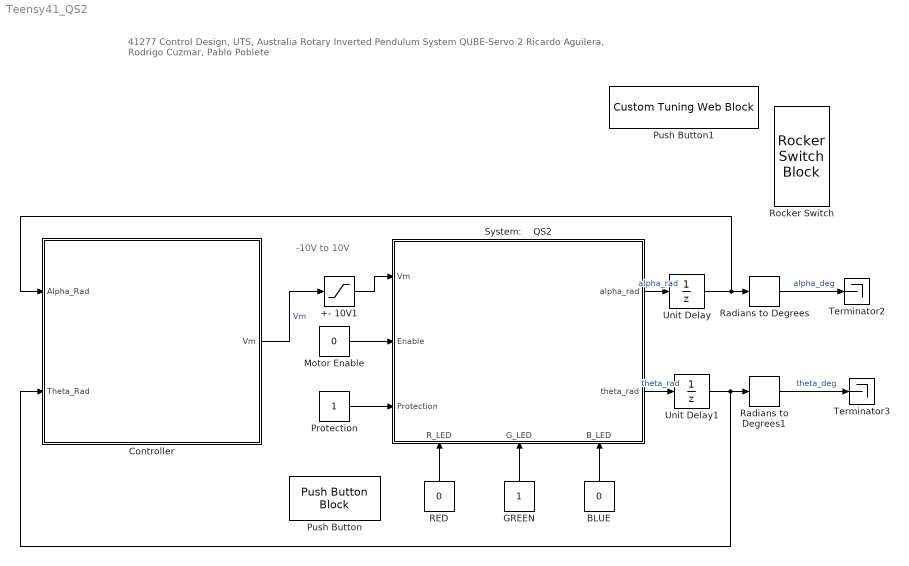
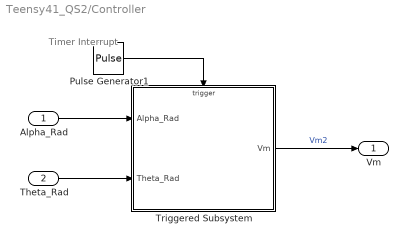
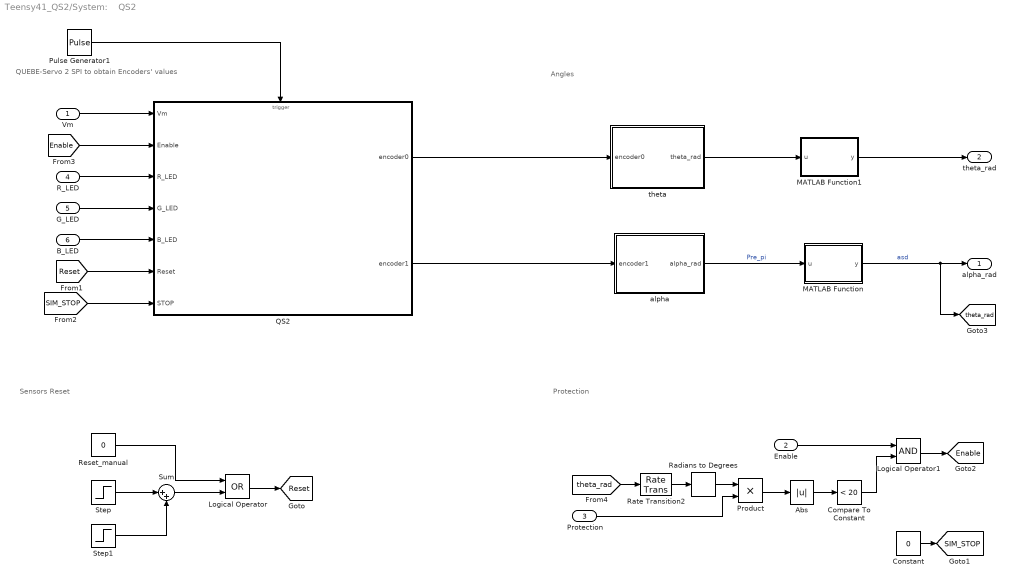
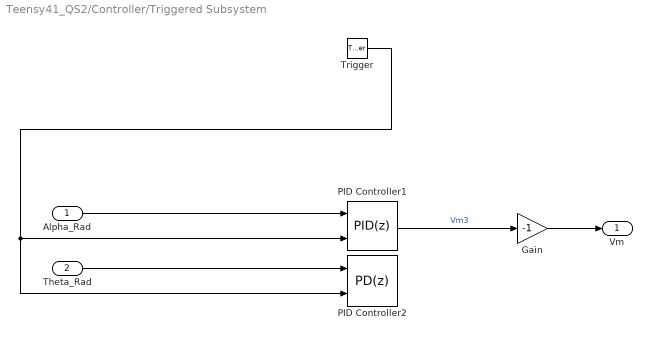
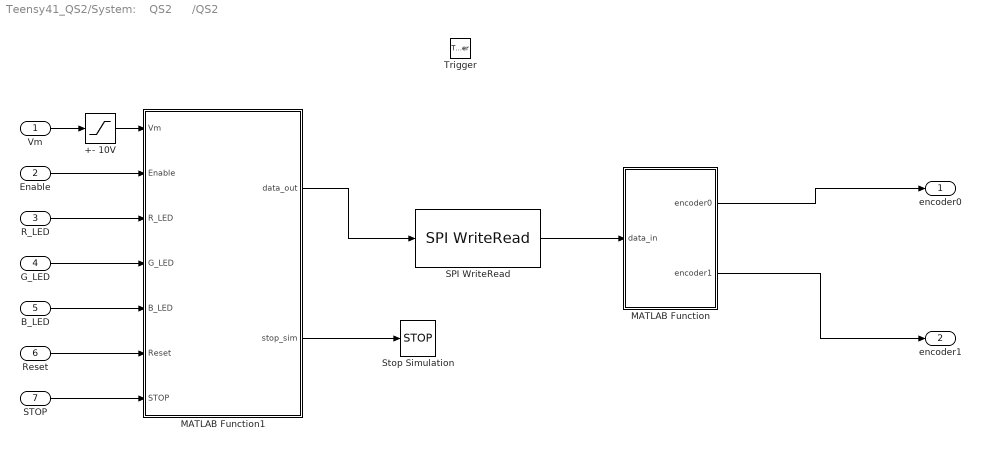
== matlab function Teensy41_QS2/System:    QS2      /QS2/MATLAB Function1 ==
function [data_out,stop_sim]  = QS2_SPI_write(Vm,Enable,R_LED,G_LED,B_LED,Reset, STOP)

persistent count_startup count_stop stop
if isempty(count_startup)
    count_startup = 1; 
    count_stop = 1;
    stop = false;
end

if (STOP > 0)
    stop = true;
end

startup = true;
if (count_startup>=5)
    startup = false;
    count_startup = 10;
end

%% SPI data to be sent
SPI_data_out = uint8(zeros(17,1));
SPI_data_out(1) = 1;
writeMask = 31;
SPI_data_out(3) = writeMask;

%% Motor Voltage
Vm_int = int16(Vm *(625.0 / 15.0));
Vm_int = bitset(Vm_int,16);
motor = typecast(Vm_int,'uint16');
motorMSB = bitshift(motor,-8);
motorLSB = bitand(motor,255);

SPI_data_out(16) = motorMSB;
SPI_data_out(17) = motorLSB;


%% Enable
if (Enable~=1)
    writeMask = 31;
    SPI_data_out(3) = writeMask;
    SPI_data_out(16) = 0;
    SPI_data_out(17) = 0;
    R_LED = 1;
    G_LED = 0;
    B_LED = 0;
end

%% Reset Encoders
if (Reset==1 || startup)
    writeMask = 127;
    SPI_data_out(3) = writeMask;
    SPI_data_out(16) = 0;
    SPI_data_out(17) = 0;
    R_LED = 1;
    G_LED = 1;
    B_LED = 1;
end

stop_sim = false;
if (stop || count_stop>1)
    count_stop = count_stop + 1;
    writeMask = 31;
    SPI_data_out(3) = writeMask;
    SPI_data_out(16) = 0;
    SPI_data_out(17) = 0;
    R_LED = 1;
    G_LED = 0;
    B_LED = 0;
end

if (count_stop> 1)
    stop_sim = true;
end

count_startup = count_startup + 1;


%% LEDs
R_LED = 999*min(1, max(0, R_LED));
G_LED = 999*min(1, max(0, G_LED));
B_LED = 999*min(1, max(0, B_LED));

LEDRedMSB   = bitshift(R_LED,-8);
LEDRedLSB   = bitand(R_LED, 255);
LEDGreenMSB = bitshift(G_LED,-8);
LEDGreenLSB = bitand(G_LED, 255);
LEDBlueMSB  = bitshift(B_LED,-8);
LEDBlueLSB  = bitand(B_LED, 255);


SPI_data_out(4) = LEDRedMSB;
SPI_data_out(5) = LEDRedLSB;
SPI_data_out(6) = LEDGreenMSB;
SPI_data_out(7) = LEDGreenLSB;
SPI_data_out(8) = LEDBlueMSB;
SPI_data_out(9) = LEDBlueLSB;

data_out = SPI_data_out;

== matlab function Teensy41_QS2/System:    QS2      /alpha ==
function alpha_rad = enc2alpha(encoder1)
%calibrate this angle sensor


% encoder provides 2048 counts per rotation
% when encoder1 = 0 --> alpha = -pi

% Convert E1 counts to pendulum angle (radians)
alpha_rad = (encoder1/(2048/(2*pi)))-pi;
% alpha_rad = alpha_rad - pi;

== matlab function Teensy41_QS2/System:    QS2      /MATLAB Function ==
function y = fcn(u)

y = u - pi;
if u > pi
    y = u-2*pi;
else
    y = u;
end

== matlab function Teensy41_QS2/System:    QS2      /theta ==
function theta_rad = enc2theta(encoder0)
%calibrate this angle sensor

% encoder provides 2048 counts per rotation
% when encoder0 = 0 --> alpha = 0
% negative rotation

% Convert E0 counts to rotation angle (radians)
theta_rad = -encoder0/(2048/(2*pi));

== matlab function Teensy41_QS2/System:    QS2      /MATLAB Function1 ==
function y = fcn(u)

if abs(u) > 2*pi
    u = 0;
end

y = u;

== matlab function Teensy41_QS2/System:    QS2      /QS2/MATLAB Function ==
function [encoder0, encoder1] =  QS2_SPI_read(data_in)

%% Encoder 0

%encoder0 data
encoder0Byte = [data_in(5), data_in(4), data_in(3)];

% Build 24-bit value
enc24 = bitor( ...
          bitor(bitshift(uint32(encoder0Byte(3)),16), ...
                bitshift(uint32(encoder0Byte(2)),8)), ...
          uint32(encoder0Byte(1)));

% Sign-extend 24-bit to 32-bit:
% left shift 8, then arithmetic right shift 8 (on int32) 
enc0 = bitshift(bitshift(int32(enc24), 8), -8);
encoder0 = double(enc0);

%% Encoder 1

%encoder1 data
encoder1Byte = [data_in(8), data_in(7), data_in(6)];

% Build 24-bit unsigned value
enc24 = bitor( ...
          bitor(bitshift(uint32(encoder1Byte(3)),16), ...
                bitshift(uint32(encoder1Byte(2)),8)), ...
          uint32(encoder1Byte(1)));

% Sign-extend from 24-bit to int32
enc1 = bitshift(bitshift(int32(enc24), 8), -8);

% Wrap counts to [0, 2047]
enc1 = mod(enc1, 2047);
if enc1 < 0
    enc1 = enc1 + 2047;
end
encoder1 = double(enc1);

/*
 * Academic License - for use in teaching, academic research, and meeting
 * course requirements at degree granting institutions only.  Not for
 * government, commercial, or other organizational use.
 *
 * File: Teensy41_QS2.c
 *
 * Code generated for Simulink model 'Teensy41_QS2'.
 *
 * Model version                  : 1.108
 * Simulink Coder version         : 24.2 (R2024b) 21-Jun-2024
 * C/C++ source code generated on : Tue Oct 28 19:15:10 2025
 *
 * Target selection: ert.tlc
 * Embedded hardware selection: ARM Compatible->ARM Cortex
 * Code generation objectives: Unspecified
 * Validation result: Not run
 */

#include "Teensy41_QS2.h"
#include <math.h>
#include "Teensy41_QS2_private.h"
#include <string.h>
#include "rt_nonfinite.h"
#include "rtwtypes.h"
#include "multiword_types.h"
#include <stddef.h>
#include "zero_crossing_types.h"

/* Block signals (default storage) */
B_Teensy41_QS2_T Teensy41_QS2_B;

/* Block states (default storage) */
DW_Teensy41_QS2_T Teensy41_QS2_DW;

/* Previous zero-crossings (trigger) states */
PrevZCX_Teensy41_QS2_T Teensy41_QS2_PrevZCX;

/* Real-time model */
static RT_MODEL_Teensy41_QS2_T Teensy41_QS2_M_;
RT_MODEL_Teensy41_QS2_T *const Teensy41_QS2_M = &Teensy41_QS2_M_;
static void rate_monotonic_scheduler(void);
int32_T MultiWord2sLong(const uint32_T u[])
{
  return (int32_T)u[0];
}

void Double2MultiWord(real_T u1, uint32_T y[], int32_T n)
{
  real_T yd;
  real_T yn;
  int32_T currExp;
  int32_T i;
  int32_T msl;
  int32_T prevExp;
  uint32_T cb;
  uint32_T u1i;
  boolean_T isNegative;
  isNegative = (u1 < 0.0);
  yn = frexp(u1, &currExp);
  msl = currExp <= 0 ? -1 : (currExp - 1) / 32;
  cb = 1U;
  for (i = msl + 1; i < n; i++) {
    y[i] = 0U;
  }

  yn = isNegative ? -yn : yn;
  prevExp = msl << 5;
  for (i = msl; i >= 0; i--) {
    yn = ldexp(yn, currExp - prevExp);
    yd = floor(yn);
    yn -= yd;
    if (i < n) {
      y[i] = (uint32_T)yd;
    }

    currExp = prevExp;
    prevExp -= 32;
  }

  if (isNegative) {
    for (i = 0; i < n; i++) {
      u1i = ~y[i];
      cb += u1i;
      y[i] = cb;
      cb = (uint32_T)(cb < u1i);
    }
  }
}

int32_T div_nde_s32_floor(int32_T numerator, int32_T denominator)
{
  return (((numerator < 0) != (denominator < 0)) && (numerator % denominator !=
           0) ? -1 : 0) + numerator / denominator;
}

/*
 * Set which subrates need to run this base step (base rate always runs).
 * This function must be called prior to calling the model step function
 * in order to remember which rates need to run this base step.  The
 * buffering of events allows for overlapping preemption.
 */
void Teensy41_QS2_SetEventsForThisBaseStep(boolean_T *eventFlags)
{
  /* Task runs when its counter is zero, computed via rtmStepTask macro */
  eventFlags[1] = ((boolean_T)rtmStepTask(Teensy41_QS2_M, 1));
}

/*
 *         This function updates active task flag for each subrate
 *         and rate transition flags for tasks that exchange data.
 *         The function assumes rate-monotonic multitasking scheduler.
 *         The function must be called at model base rate so that
 *         the generated code self-manages all its subrates and rate
 *         transition flags.
 */
static void rate_monotonic_scheduler(void)
{
  /* To ensure a deterministic data transfer between two rates,
   * data is transferred at the priority of a fast task and the frequency
   * of the slow task.  The following flags indicate when the data transfer
   * happens.  That is, a rate interaction flag is set true when both rates
   * will run, and false otherwise.
   */

  /* tid 0 shares data with slower tid rate: 1 */
  Teensy41_QS2_M->Timing.RateInteraction.TID0_1 =
    (Teensy41_QS2_M->Timing.TaskCounters.TID[1] == 0);

  /* Compute which subrates run during the next base time step.  Subrates
   * are an integer multiple of the base rate counter.  Therefore, the subtask
   * counter is reset when it reaches its limit (zero means run).
   */
  (Teensy41_QS2_M->Timing.TaskCounters.TID[1])++;
  if ((Teensy41_QS2_M->Timing.TaskCounters.TID[1]) > 1) {/* Sample time: [0.001s, 0.0s] */
    Teensy41_QS2_M->Timing.TaskCounters.TID[1] = 0;
  }
}

real_T rt_roundd_snf(real_T u)
{
  real_T y;
  if (fabs(u) < 4.503599627370496E+15) {
    if (u >= 0.5) {
      y = floor(u + 0.5);
    } else if (u > -0.5) {
      y = u * 0.0;
    } else {
      y = ceil(u - 0.5);
    }
  } else {
    y = u;
  }

  return y;
}

/* Model step function for TID0 */
void Teensy41_QS2_step0(void)          /* Sample time: [0.0005s, 0.0s] */
{
  uint64m_T tmp;
  uint64m_T tmp_0;
  uint64m_T tmp_1;
  real_T tmp_3;
  real_T y;
  int32_T i;
  uint32_T TriggeredSubsystem_ELAPS_T;
  int16_T x;
  uint16_T motor;
  int8_T rtb_Switch1;
  int8_T tmp_2;
  uint8_T tmp_4;
  boolean_T rtb_RelationalOperator;
  boolean_T startup;
  ZCEventType zcEvent;

  {                                    /* Sample time: [0.0005s, 0.0s] */
    rate_monotonic_scheduler();
  }

  /* Reset subsysRan breadcrumbs */
  srClearBC(Teensy41_QS2_DW.TriggeredSubsystem_SubsysRanBC);

  /* Reset subsysRan breadcrumbs */
  srClearBC(Teensy41_QS2_DW.QS2_SubsysRanBC);

  /* Gain: '<S3>/Gain' incorporates:
   *  UnitDelay: '<Root>/Unit Delay1'
   */
  Teensy41_QS2_B.Gain = Teensy41_QS2_P.Gain_Gain_m *
    Teensy41_QS2_DW.UnitDelay1_DSTATE;

  /* Gain: '<S2>/Gain' incorporates:
   *  UnitDelay: '<Root>/Unit Delay'
   */
  Teensy41_QS2_B.Gain_b = Teensy41_QS2_P.Gain_Gain_k *
    Teensy41_QS2_DW.UnitDelay_DSTATE;

  /* Outputs for Atomic SubSystem: '<Root>/Controller' */
  /* DiscretePulseGenerator: '<S1>/Pulse Generator1' */
  Teensy41_QS2_B.PulseGenerator1_a = (Teensy41_QS2_DW.clockTickCounter_p <
    Teensy41_QS2_P.PulseGenerator1_Duty) && (Teensy41_QS2_DW.clockTickCounter_p >=
    0) ? Teensy41_QS2_P.PulseGenerator1_Amp : 0.0;
  if (Teensy41_QS2_DW.clockTickCounter_p >=
      Teensy41_QS2_P.PulseGenerator1_Period - 1.0) {
    Teensy41_QS2_DW.clockTickCounter_p = 0;
  } else {
    Teensy41_QS2_DW.clockTickCounter_p++;
  }

  /* End of DiscretePulseGenerator: '<S1>/Pulse Generator1' */

  /* Outputs for Triggered SubSystem: '<S1>/Triggered Subsystem' incorporates:
   *  TriggerPort: '<S5>/Trigger'
   */
  zcEvent = rt_ZCFcn(RISING_ZERO_CROSSING,
                     &Teensy41_QS2_PrevZCX.TriggeredSubsystem_Trig_ZCE,
                     (Teensy41_QS2_B.PulseGenerator1_a));
  if (zcEvent != NO_ZCEVENT) {
    if (Teensy41_QS2_DW.TriggeredSubsystem_RESET_ELAPS_) {
      TriggeredSubsystem_ELAPS_T = 0U;
    } else {
      TriggeredSubsystem_ELAPS_T = Teensy41_QS2_M->Timing.clockTick0 -
        Teensy41_QS2_DW.TriggeredSubsystem_PREV_T;
    }

    Teensy41_QS2_DW.TriggeredSubsystem_PREV_T =
      Teensy41_QS2_M->Timing.clockTick0;
    Teensy41_QS2_DW.TriggeredSubsystem_RESET_ELAPS_ = false;

    /* DiscreteIntegrator: '<S44>/Integrator' incorporates:
     *  Constant: '<S5>/Constant4'
     */
    if (Teensy41_QS2_DW.Integrator_SYSTEM_ENABLE == 0) {
      if ((Teensy41_QS2_P.Constant4_Value > 0.0) &&
          (Teensy41_QS2_DW.Integrator_PrevResetState <= 0)) {
        Teensy41_QS2_DW.Integrator_DSTATE =
          Teensy41_QS2_P.PIDController1_InitialConditi_m;
      } else {
        /* DiscreteIntegrator: '<S44>/Integrator' */
        Teensy41_QS2_DW.Integrator_DSTATE += Teensy41_QS2_P.Integrator_gainval *
          (real_T)TriggeredSubsystem_ELAPS_T * Teensy41_QS2_DW.Integrator_PREV_U;
      }
    }

    /* End of DiscreteIntegrator: '<S44>/Integrator' */

    /* DiscreteIntegrator: '<S39>/Filter' incorporates:
     *  Constant: '<S5>/Constant4'
     */
    if (Teensy41_QS2_DW.Filter_SYSTEM_ENABLE == 0) {
      if ((Teensy41_QS2_P.Constant4_Value > 0.0) &&
          (Teensy41_QS2_DW.Filter_PrevResetState <= 0)) {
        Teensy41_QS2_DW.Filter_DSTATE =
          Teensy41_QS2_P.PIDController1_InitialCondition;
      } else {
        /* DiscreteIntegrator: '<S39>/Filter' */
        Teensy41_QS2_DW.Filter_DSTATE += Teensy41_QS2_P.Filter_gainval * (real_T)
          TriggeredSubsystem_ELAPS_T * Teensy41_QS2_DW.Filter_PREV_U;
      }
    }

    /* End of DiscreteIntegrator: '<S39>/Filter' */

    /* Product: '<S47>/NProd Out' incorporates:
     *  Constant: '<S5>/Constant2'
     *  Constant: '<S5>/Constant3'
     *  Math: '<S5>/Math Function'
     *  Product: '<S37>/DProd Out'
     *  Sum: '<S39>/SumD'
     *  UnitDelay: '<Root>/Unit Delay'
     *
     * About '<S5>/Math Function':
     *  Operator: reciprocal
     */
    Teensy41_QS2_DW.Filter_PREV_U = (Teensy41_QS2_DW.UnitDelay_DSTATE *
      Teensy41_QS2_P.Constant2_Value - Teensy41_QS2_DW.Filter_DSTATE) * (1.0 /
      Teensy41_QS2_P.Constant3_Value);

    /* Step: '<S4>/Step1' incorporates:
     *  Constant: '<S5>/Constant'
     *  Product: '<S49>/PProd Out'
     *  Sum: '<S53>/Sum'
     *  UnitDelay: '<Root>/Unit Delay'
     */
    Teensy41_QS2_B.Saturation = (Teensy41_QS2_DW.UnitDelay_DSTATE *
      Teensy41_QS2_P.Constant_Value + Teensy41_QS2_DW.Integrator_DSTATE) +
      Teensy41_QS2_DW.Filter_PREV_U;

    /* DeadZone: '<S36>/DeadZone' */
    if (Teensy41_QS2_B.Saturation >
        Teensy41_QS2_P.PIDController1_UpperSaturationL) {
      /* Step: '<S4>/Step' */
      Teensy41_QS2_DW.Integrator_PREV_U = Teensy41_QS2_B.Saturation -
        Teensy41_QS2_P.PIDController1_UpperSaturationL;
    } else if (Teensy41_QS2_B.Saturation >=
               Teensy41_QS2_P.PIDController1_LowerSaturationL) {
      /* Step: '<S4>/Step' */
      Teensy41_QS2_DW.Integrator_PREV_U = 0.0;
    } else {
      /* Step: '<S4>/Step' */
      Teensy41_QS2_DW.Integrator_PREV_U = Teensy41_QS2_B.Saturation -
        Teensy41_QS2_P.PIDController1_LowerSaturationL;
    }

    /* End of DeadZone: '<S36>/DeadZone' */

    /* RelationalOperator: '<S34>/Relational Operator' incorporates:
     *  Constant: '<S34>/Clamping_zero'
     */
    rtb_RelationalOperator = (Teensy41_QS2_P.Clamping_zero_Value !=
      Teensy41_QS2_DW.Integrator_PREV_U);

    /* Switch: '<S34>/Switch1' incorporates:
     *  Constant: '<S34>/Clamping_zero'
     *  Constant: '<S34>/Constant'
     *  Constant: '<S34>/Constant2'
     *  RelationalOperator: '<S34>/fix for DT propagation issue'
     */
    if (Teensy41_QS2_DW.Integrator_PREV_U > Teensy41_QS2_P.Clamping_zero_Value)
    {
      rtb_Switch1 = Teensy41_QS2_P.Constant_Value_j;
    } else {
      rtb_Switch1 = Teensy41_QS2_P.Constant2_Value_o;
    }

    /* End of Switch: '<S34>/Switch1' */

    /* Step: '<S4>/Step' incorporates:
     *  Constant: '<S5>/Constant1'
     *  Product: '<S41>/IProd Out'
     *  UnitDelay: '<Root>/Unit Delay'
     */
    Teensy41_QS2_DW.Integrator_PREV_U = Teensy41_QS2_DW.UnitDelay_DSTATE *
      Teensy41_QS2_P.Constant1_Value_i;

    /* Saturate: '<S51>/Saturation' */
    if (Teensy41_QS2_B.Saturation >
        Teensy41_QS2_P.PIDController1_UpperSaturationL) {
      /* Step: '<S4>/Step1' incorporates:
       *  Saturate: '<S51>/Saturation'
       */
      Teensy41_QS2_B.Saturation = Teensy41_QS2_P.PIDController1_UpperSaturationL;
    } else if (Teensy41_QS2_B.Saturation <
               Teensy41_QS2_P.PIDController1_LowerSaturationL) {
      /* Step: '<S4>/Step1' incorporates:
       *  Saturate: '<S51>/Saturation'
       */
      Teensy41_QS2_B.Saturation = Teensy41_QS2_P.PIDController1_LowerSaturationL;
    }

    /* End of Saturate: '<S51>/Saturation' */
    /* Gain: '<S5>/Gain' */
    Teensy41_QS2_B.Gain_b5 = Teensy41_QS2_P.Gain_Gain *
      Teensy41_QS2_B.Saturation;

    /* Update for DiscreteIntegrator: '<S44>/Integrator' incorporates:
     *  Constant: '<S5>/Constant4'
     */
    Teensy41_QS2_DW.Integrator_SYSTEM_ENABLE = 0U;
    if (Teensy41_QS2_P.Constant4_Value > 0.0) {
      Teensy41_QS2_DW.Integrator_PrevResetState = 1;
    } else if (Teensy41_QS2_P.Constant4_Value < 0.0) {
      Teensy41_QS2_DW.Integrator_PrevResetState = -1;
    } else if (Teensy41_QS2_P.Constant4_Value == 0.0) {
      Teensy41_QS2_DW.Integrator_PrevResetState = 0;
    } else {
      Teensy41_QS2_DW.Integrator_PrevResetState = 2;
    }

    /* Switch: '<S34>/Switch2' incorporates:
     *  Constant: '<S34>/Clamping_zero'
     *  Constant: '<S34>/Constant3'
     *  Constant: '<S34>/Constant4'
     *  RelationalOperator: '<S34>/fix for DT propagation issue1'
     */
    if (Teensy41_QS2_DW.Integrator_PREV_U > Teensy41_QS2_P.Clamping_zero_Value)
    {
      tmp_2 = Teensy41_QS2_P.Constant3_Value_m;
    } else {
      tmp_2 = Teensy41_QS2_P.Constant4_Value_e;
    }

    /* Switch: '<S34>/Switch' incorporates:
     *  Logic: '<S34>/AND3'
     *  RelationalOperator: '<S34>/Equal1'
     *  Switch: '<S34>/Switch2'
     */
    if (rtb_RelationalOperator && (rtb_Switch1 == tmp_2)) {
      /* Step: '<S4>/Step' incorporates:
       *  Constant: '<S34>/Constant1'
       *  DiscreteIntegrator: '<S44>/Integrator'
       */
      Teensy41_QS2_DW.Integrator_PREV_U = Teensy41_QS2_P.Constant1_Value;
    }

    /* End of Switch: '<S34>/Switch' */

    /* Update for DiscreteIntegrator: '<S39>/Filter' incorporates:
     *  Constant: '<S5>/Constant4'
     */
    Teensy41_QS2_DW.Filter_SYSTEM_ENABLE = 0U;
    if (Teensy41_QS2_P.Constant4_Value > 0.0) {
      Teensy41_QS2_DW.Filter_PrevResetState = 1;
    } else if (Teensy41_QS2_P.Constant4_Value < 0.0) {
      Teensy41_QS2_DW.Filter_PrevResetState = -1;
    } else if (Teensy41_QS2_P.Constant4_Value == 0.0) {
      Teensy41_QS2_DW.Filter_PrevResetState = 0;
    } else {
      Teensy41_QS2_DW.Filter_PrevResetState = 2;
    }

    /* End of Update for DiscreteIntegrator: '<S39>/Filter' */
    Teensy41_QS2_DW.TriggeredSubsystem_SubsysRanBC = 4;
  }

  /* End of Outputs for SubSystem: '<S1>/Triggered Subsystem' */
  /* RateTransition generated from: '<S4>/QS2' incorporates:
   *  RateTransition: '<S4>/Rate Transition2'
   */
  rtb_RelationalOperator = Teensy41_QS2_M->Timing.RateInteraction.TID0_1;
  if (rtb_RelationalOperator) {
    /* RateTransition generated from: '<S4>/QS2' */
    Teensy41_QS2_B.TmpRTBAtQS2Inport2 =
      Teensy41_QS2_DW.TmpRTBAtQS2Inport2_Buffer0;
  }

  /* End of RateTransition generated from: '<S4>/QS2' */

  /* DiscretePulseGenerator: '<S4>/Pulse Generator1' */
  Teensy41_QS2_B.PulseGenerator1_a = (Teensy41_QS2_DW.clockTickCounter <
    Teensy41_QS2_P.PulseGenerator1_Duty_m) && (Teensy41_QS2_DW.clockTickCounter >=
    0) ? Teensy41_QS2_P.PulseGenerator1_Amp_p : 0.0;
  if (Teensy41_QS2_DW.clockTickCounter >=
      Teensy41_QS2_P.PulseGenerator1_Period_k - 1.0) {
    Teensy41_QS2_DW.clockTickCounter = 0;
  } else {
    Teensy41_QS2_DW.clockTickCounter++;
  }

  /* End of DiscretePulseGenerator: '<S4>/Pulse Generator1' */

  /* Outputs for Triggered SubSystem: '<S4>/QS2' incorporates:
   *  TriggerPort: '<S119>/Trigger'
   */
  zcEvent = rt_ZCFcn(RISING_ZERO_CROSSING,&Teensy41_QS2_PrevZCX.QS2_Trig_ZCE,
                     (Teensy41_QS2_B.PulseGenerator1_a));
  if (zcEvent != NO_ZCEVENT) {
    /* MATLAB Function: '<S119>/MATLAB Function1' incorporates:
     *  Constant: '<Root>/BLUE'
     *  Constant: '<Root>/GREEN'
     *  Constant: '<Root>/RED'
     *  Constant: '<S4>/Constant'
     */
    Teensy41_QS2_B.y = Teensy41_QS2_P.RED_Value;
    Teensy41_QS2_B.b_y = Teensy41_QS2_P.GREEN_Value;
    Teensy41_QS2_B.PulseGenerator1_a = Teensy41_QS2_P.BLUE_Value;
    Teensy41_QS2_DW.stop = ((Teensy41_QS2_P.Constant_Value_p > 0.0) ||
      Teensy41_QS2_DW.stop);
    startup = true;
    if (Teensy41_QS2_DW.count_startup >= 5.0) {
      startup = false;
      Teensy41_QS2_DW.count_startup = 10.0;
    }

    for (i = 0; i < 17; i++) {
      Teensy41_QS2_B.data_out[i] = 0U;
    }

    Teensy41_QS2_B.data_out[0] = 1U;
    Teensy41_QS2_B.data_out[2] = 31U;

    /* Saturate: '<Root>/+- 10V1' */
    if (Teensy41_QS2_B.Gain_b5 > Teensy41_QS2_P.u0V1_UpperSat) {
      y = Teensy41_QS2_P.u0V1_UpperSat;
    } else if (Teensy41_QS2_B.Gain_b5 < Teensy41_QS2_P.u0V1_LowerSat) {
      y = Teensy41_QS2_P.u0V1_LowerSat;
    } else {
      y = Teensy41_QS2_B.Gain_b5;
    }

    /* End of Saturate: '<Root>/+- 10V1' */

    /* Saturate: '<S119>/+- 10V' */
    if (y > Teensy41_QS2_P.u0V_UpperSat) {
      y = Teensy41_QS2_P.u0V_UpperSat;
    } else if (y < Teensy41_QS2_P.u0V_LowerSat) {
      y = Teensy41_QS2_P.u0V_LowerSat;
    }

    /* MATLAB Function: '<S119>/MATLAB Function1' incorporates:
     *  Saturate: '<S119>/+- 10V'
     */
    y = rt_roundd_snf(y * 41.666666666666664);
    if (y < 32768.0) {
      if (y >= -32768.0) {
        x = (int16_T)y;
      } else {
        x = MIN_int16_T;
      }
    } else {
      x = MAX_int16_T;
    }

    x |= MIN_int16_T;
    memcpy((void *)&motor, (void *)&x, (size_t)1 * sizeof(uint16_T));
    Teensy41_QS2_B.data_out[15] = (uint8_T)(motor >> 8);
    Teensy41_QS2_B.data_out[16] = (uint8_T)(motor & 255U);
    if (!Teensy41_QS2_B.TmpRTBAtQS2Inport2) {
      Teensy41_QS2_B.data_out[2] = 31U;
      Teensy41_QS2_B.data_out[15] = 0U;
      Teensy41_QS2_B.data_out[16] = 0U;
      Teensy41_QS2_B.y = 1.0;
      Teensy41_QS2_B.b_y = 0.0;
      Teensy41_QS2_B.PulseGenerator1_a = 0.0;
    }

    /* Step: '<S4>/Step' incorporates:
     *  Step: '<S4>/Step1'
     */
    y = Teensy41_QS2_M->Timing.taskTime0;
    if (y < Teensy41_QS2_P.ts) {
      tmp_3 = Teensy41_QS2_P.Step_Y0;
    } else {
      tmp_3 = Teensy41_QS2_P.Step_YFinal;
    }

    /* Step: '<S4>/Step1' */
    if (y < 2.0 * Teensy41_QS2_P.ts) {
      y = Teensy41_QS2_P.Step1_Y0;
    } else {
      y = Teensy41_QS2_P.Step1_YFinal;
    }

    /* MATLAB Function: '<S119>/MATLAB Function1' incorporates:
     *  Constant: '<S4>/Reset_manual'
     *  Logic: '<S4>/Logical Operator'
     *  Step: '<S4>/Step'
     *  Step: '<S4>/Step1'
     *  Sum: '<S4>/Sum'
     */
    if ((Teensy41_QS2_P.Reset_manual_Value != 0.0) || (tmp_3 + y != 0.0) ||
        startup) {
      Teensy41_QS2_B.data_out[2] = 127U;
      Teensy41_QS2_B.data_out[15] = 0U;
      Teensy41_QS2_B.data_out[16] = 0U;
      Teensy41_QS2_B.y = 1.0;
      Teensy41_QS2_B.b_y = 1.0;
      Teensy41_QS2_B.PulseGenerator1_a = 1.0;
    }

    if (Teensy41_QS2_DW.stop || (Teensy41_QS2_DW.count_stop > 1.0)) {
      Teensy41_QS2_DW.count_stop++;
      Teensy41_QS2_B.data_out[2] = 31U;
      Teensy41_QS2_B.data_out[15] = 0U;
      Teensy41_QS2_B.data_out[16] = 0U;
      Teensy41_QS2_B.y = 1.0;
      Teensy41_QS2_B.b_y = 0.0;
      Teensy41_QS2_B.PulseGenerator1_a = 0.0;
    }

    Teensy41_QS2_DW.count_startup++;
    if ((Teensy41_QS2_B.y <= 0.0) || rtIsNaN(Teensy41_QS2_B.y)) {
      Teensy41_QS2_B.y = 0.0;
    }

    if (Teensy41_QS2_B.y >= 1.0) {
      Teensy41_QS2_B.y = 1.0;
    }

    y = 999.0 * Teensy41_QS2_B.y;
    if ((Teensy41_QS2_B.b_y <= 0.0) || rtIsNaN(Teensy41_QS2_B.b_y)) {
      Teensy41_QS2_B.b_y = 0.0;
    }

    if (Teensy41_QS2_B.b_y >= 1.0) {
      Teensy41_QS2_B.b_y = 1.0;
    }

    Teensy41_QS2_B.b_y *= 999.0;
    if ((Teensy41_QS2_B.PulseGenerator1_a <= 0.0) || rtIsNaN
        (Teensy41_QS2_B.PulseGenerator1_a)) {
      Teensy41_QS2_B.PulseGenerator1_a = 0.0;
    }

    if (Teensy41_QS2_B.PulseGenerator1_a >= 1.0) {
      Teensy41_QS2_B.PulseGenerator1_a = 1.0;
    }

    Teensy41_QS2_B.PulseGenerator1_a *= 999.0;
    Double2MultiWord(y, &Teensy41_QS2_B.r.chunks[0U], 2);
    Teensy41_QS2_B.data_out[3] = (uint8_T)(MultiWord2sLong
      (&Teensy41_QS2_B.r.chunks[0U]) >> 8);
    Double2MultiWord(y, &Teensy41_QS2_B.r1.chunks[0U], 2);
    Teensy41_QS2_B.data_out[4] = (uint8_T)((uint32_T)MultiWord2sLong
      (&Teensy41_QS2_B.r1.chunks[0U]) & 255U);
    Double2MultiWord(Teensy41_QS2_B.b_y, &Teensy41_QS2_B.r2.chunks[0U], 2);
    Teensy41_QS2_B.data_out[5] = (uint8_T)(MultiWord2sLong
      (&Teensy41_QS2_B.r2.chunks[0U]) >> 8);
    Double2MultiWord(Teensy41_QS2_B.b_y, &tmp.chunks[0U], 2);
    Teensy41_QS2_B.data_out[6] = (uint8_T)((uint32_T)MultiWord2sLong
      (&tmp.chunks[0U]) & 255U);
    Double2MultiWord(Teensy41_QS2_B.PulseGenerator1_a, &tmp_0.chunks[0U], 2);
    Teensy41_QS2_B.data_out[7] = (uint8_T)(MultiWord2sLong(&tmp_0.chunks[0U]) >>
      8);
    Double2MultiWord(Teensy41_QS2_B.PulseGenerator1_a, &tmp_1.chunks[0U], 2);
    Teensy41_QS2_B.data_out[8] = (uint8_T)((uint32_T)MultiWord2sLong
      (&tmp_1.chunks[0U]) & 255U);

    /* MATLABSystem: '<S119>/SPI WriteRead' */
    if (Teensy41_QS2_DW.obj.slaveSelectPin_ !=
        Teensy41_QS2_P.SPIWriteRead_slaveSelectPin_) {
      Teensy41_QS2_DW.obj.slaveSelectPin_ =
        Teensy41_QS2_P.SPIWriteRead_slaveSelectPin_;
    }

    y = rt_roundd_snf(Teensy41_QS2_DW.obj.slaveSelectPin_);
    if (y < 256.0) {
      if (y >= 0.0) {
        tmp_4 = (uint8_T)y;
      } else {
        tmp_4 = 0U;
      }
    } else {
      tmp_4 = MAX_uint8_T;
    }

    MW_SPIwriteReadLoop(0, tmp_4, &Teensy41_QS2_B.data_out[0], 17.0, 1.0,
                        &Teensy41_QS2_B.uv[0]);

    /* MATLAB Function: '<S119>/MATLAB Function' incorporates:
     *  MATLABSystem: '<S119>/SPI WriteRead'
     */
    Teensy41_QS2_B.encoder0 = ((int32_T)((uint32_T)Teensy41_QS2_B.uv[2] << 16 |
      (uint32_T)Teensy41_QS2_B.uv[3] << 8 | Teensy41_QS2_B.uv[4]) << 8) >> 8;
    i = ((int32_T)((uint32_T)Teensy41_QS2_B.uv[5] << 16 | (uint32_T)
                   Teensy41_QS2_B.uv[6] << 8 | Teensy41_QS2_B.uv[7]) << 8) >> 8;
    i -= div_nde_s32_floor(i, 2047) * 2047;
    if (i < 0) {
      i += 2047;
    }

    Teensy41_QS2_B.encoder1 = i;

    /* End of MATLAB Function: '<S119>/MATLAB Function' */

    /* Stop: '<S119>/Stop Simulation' incorporates:
     *  MATLAB Function: '<S119>/MATLAB Function1'
     */
    if (Teensy41_QS2_DW.count_stop > 1.0) {
      rtmSetStopRequested(Teensy41_QS2_M, 1);
    }

    /* End of Stop: '<S119>/Stop Simulation' */
    Teensy41_QS2_DW.QS2_SubsysRanBC = 4;
  }

  /* End of Outputs for SubSystem: '<S4>/QS2' */

  /* MATLAB Function: '<S4>/alpha' */
  Teensy41_QS2_B.alpha_rad = Teensy41_QS2_B.encoder1 / 325.94932345220167 -
    3.1415926535897931;

  /* MATLAB Function: '<S4>/MATLAB Function' */
  if (Teensy41_QS2_B.alpha_rad > 3.1415926535897931) {
    Teensy41_QS2_B.y_b = Teensy41_QS2_B.alpha_rad - 6.2831853071795862;
  } else {
    Teensy41_QS2_B.y_b = Teensy41_QS2_B.alpha_rad;
  }

  /* End of MATLAB Function: '<S4>/MATLAB Function' */
  /* RateTransition: '<S4>/Rate Transition2' */
  if (rtb_RelationalOperator) {
    Teensy41_QS2_DW.RateTransition2_Buffer = Teensy41_QS2_B.y_b;
  }

  /* MATLAB Function: '<S4>/theta' */
  Teensy41_QS2_B.y = -Teensy41_QS2_B.encoder0 / 325.94932345220167;

  /* MATLAB Function: '<S4>/MATLAB Function1' */
  if (fabs(Teensy41_QS2_B.y) > 6.2831853071795862) {
    Teensy41_QS2_B.y = 0.0;
  }

  /* End of MATLAB Function: '<S4>/MATLAB Function1' */
  /* Update for UnitDelay: '<Root>/Unit Delay1' */
  Teensy41_QS2_DW.UnitDelay1_DSTATE = Teensy41_QS2_B.y;

  /* Update for UnitDelay: '<Root>/Unit Delay' */
  Teensy41_QS2_DW.UnitDelay_DSTATE = Teensy41_QS2_B.y_b;

  /* Update absolute time */
  /* The "clockTick0" counts the number of times the code of this task has
   * been executed. The absolute time is the multiplication of "clockTick0"
   * and "Timing.stepSize0". Size of "clockTick0" ensures timer will not
   * overflow during the application lifespan selected.
   */
  Teensy41_QS2_M->Timing.taskTime0 =
    ((time_T)(++Teensy41_QS2_M->Timing.clockTick0)) *
    Teensy41_QS2_M->Timing.stepSize0;
}

/* Model step function for TID1 */
void Teensy41_QS2_step1(void)          /* Sample time: [0.001s, 0.0s] */
{
  boolean_T rtb_LogicalOperator1;

  /* Logic: '<S4>/Logical Operator1' incorporates:
   *  Abs: '<S4>/Abs'
   *  Constant: '<Root>/Motor Enable'
   *  Constant: '<Root>/Protection'
   *  Constant: '<S116>/Constant'
   *  Gain: '<S120>/Gain'
   *  Product: '<S4>/Product'
   *  RateTransition: '<S4>/Rate Transition2'
   *  RelationalOperator: '<S116>/Compare'
   */
  rtb_LogicalOperator1 = ((Teensy41_QS2_P.MotorEnable_Value != 0.0) && (fabs
    (Teensy41_QS2_P.Gain_Gain_f * Teensy41_QS2_DW.RateTransition2_Buffer *
     Teensy41_QS2_P.Protection_Value) < Teensy41_QS2_P.CompareToConstant_const));

  /* RateTransition generated from: '<S4>/QS2' */
  Teensy41_QS2_DW.TmpRTBAtQS2Inport2_Buffer0 = rtb_LogicalOperator1;

  /* Update absolute time */
  /* The "clockTick1" counts the number of times the code of this task has
   * been executed. The resolution of this integer timer is 0.001, which is the step size
   * of the task. Size of "clockTick1" ensures timer will not overflow during the
   * application lifespan selected.
   */
  Teensy41_QS2_M->Timing.clockTick1++;
}
